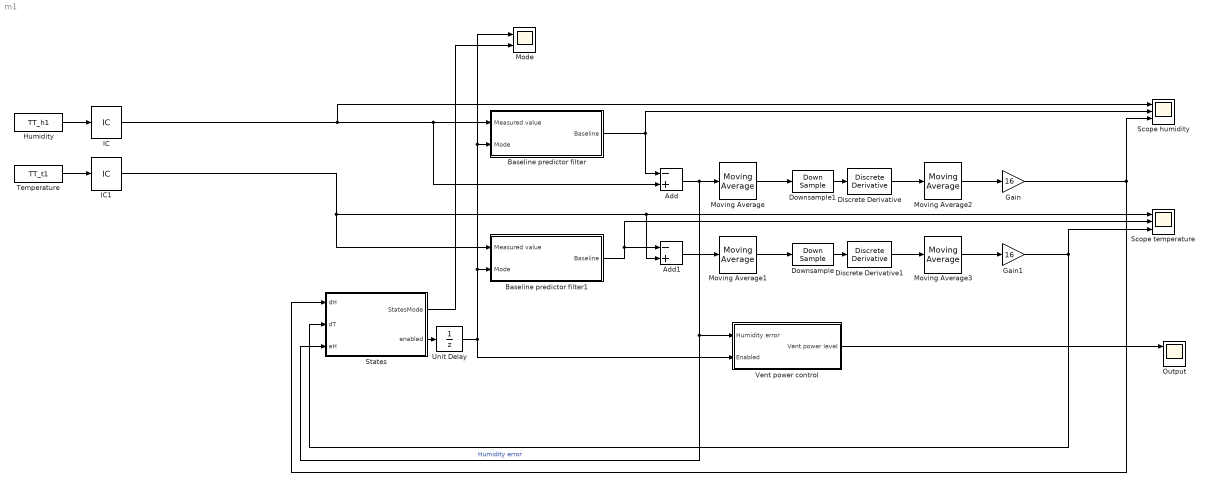
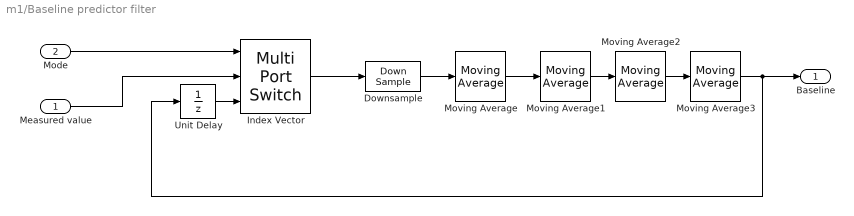
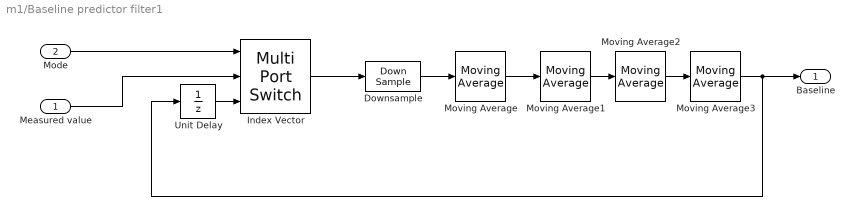
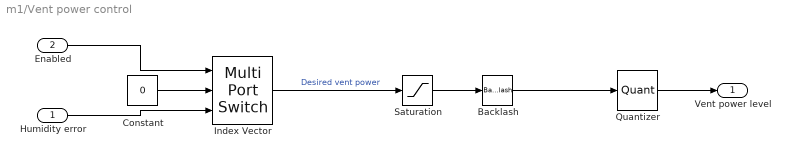
== stateflow chart m1/States ==
  state Stopping
    entry: enabled=0
  state Detected
    entry: enabled=1
  state Stable
    entry: enabled=1
  state OFF
    entry: enabled=0
  Stopping -> OFF
  Detected -> OFF [order 1] : [dH <  -5]
  Stable -> Stopping : [eH < 8]
  (default) -> OFF
  Detected -> Stable [order 2] : [eH > 10]
  OFF -> Detected : [dH > 4]
  data: dH input; dT input; StatesMode output Enum: StatesModeType; enabled output; eH input

/*
 * m1.cpp
 *
 * Academic License - for use in teaching, academic research, and meeting
 * course requirements at degree granting institutions only.  Not for
 * government, commercial, or other organizational use.
 *
 * Code generation for model "m1".
 *
 * Model version              : 1.10
 * Simulink Coder version : 9.3 (R2020a) 18-Nov-2019
 * C++ source code generated on : Mon Nov 15 14:24:38 2021
 *
 * Target selection: grt.tlc
 * Note: GRT includes extra infrastructure and instrumentation for prototyping
 * Embedded hardware selection: ARM Compatible->ARM 10
 * Code generation objectives: Unspecified
 * Validation result: Not run
 */

#include "m1_capi.h"
#include "m1.h"
#include "m1_private.h"

void m1ModelClass::m1_SystemCore_release(dsp_simulink_MovingAverage_m1_T *obj)
{
  g_dsp_private_SlidingWindowAv_T *obj_0;
  if ((obj->isInitialized == 1) && obj->isSetupComplete) {
    obj_0 = obj->pStatistic;
    if (obj_0->isInitialized == 1) {
      obj_0->isInitialized = 2;
    }

    obj->NumChannels = -1;
  }
}

void m1ModelClass::m1_SystemCore_delete(dsp_simulink_MovingAverage_m1_T *obj)
{
  m1_SystemCore_release(obj);
}

void m1ModelClass::matlabCodegenHandle_matlabCodeg
  (dsp_simulink_MovingAverage_m1_T *obj)
{
  if (!obj->matlabCodegenIsDeleted) {
    obj->matlabCodegenIsDeleted = true;
    m1_SystemCore_delete(obj);
  }
}

/*
 * System initialize for atomic system:
 *    synthesized block
 *    synthesized block
 *    synthesized block
 *    synthesized block
 */
void m1ModelClass::m1_MovingAverage3_Init(DW_MovingAverage3_m1_T *localDW)
{
  /* Start for MATLABSystem: '<Root>/Moving Average3' */
  localDW->obj.matlabCodegenIsDeleted = false;
  localDW->objisempty = true;
  localDW->obj.isInitialized = 1;
  localDW->obj.NumChannels = 1;
  localDW->gobj_2.isInitialized = 0;
  localDW->obj.pStatistic = &localDW->gobj_2;
  localDW->obj.isSetupComplete = true;
  localDW->obj.TunablePropsChanged = false;

  /* InitializeConditions for MATLABSystem: '<Root>/Moving Average3' */
  if (localDW->obj.pStatistic->isInitialized == 1) {
    localDW->obj.pStatistic->pCumSum = 0.0;
    std::memset(&localDW->obj.pStatistic->pCumSumRev[0], 0, 15U * sizeof(real_T));
    localDW->obj.pStatistic->pCumRevIndex = 1.0;
  }

  /* End of InitializeConditions for MATLABSystem: '<Root>/Moving Average3' */
}

/*
 * Output and update for atomic system:
 *    synthesized block
 *    synthesized block
 *    synthesized block
 *    synthesized block
 */
void m1ModelClass::m1_MovingAverage3(real_T rtu_0, B_MovingAverage3_m1_T *localB,
  DW_MovingAverage3_m1_T *localDW)
{
  real_T cumRevIndex;
  real_T csum;
  real_T csumrev[15];
  real_T z;
  int32_T z_tmp;

  /* MATLABSystem: '<Root>/Moving Average3' */
  if (localDW->obj.TunablePropsChanged) {
    localDW->obj.TunablePropsChanged = false;
  }

  if (localDW->obj.pStatistic->isInitialized != 1) {
    localDW->obj.pStatistic->isSetupComplete = false;
    localDW->obj.pStatistic->isInitialized = 1;
    localDW->obj.pStatistic->pCumSum = 0.0;
    localDW->obj.pStatistic->pCumRevIndex = 1.0;
    localDW->obj.pStatistic->isSetupComplete = true;
    localDW->obj.pStatistic->pCumSum = 0.0;
    std::memset(&localDW->obj.pStatistic->pCumSumRev[0], 0, 15U * sizeof(real_T));
    localDW->obj.pStatistic->pCumRevIndex = 1.0;
  }

  cumRevIndex = localDW->obj.pStatistic->pCumRevIndex;
  csum = localDW->obj.pStatistic->pCumSum;
  for (z_tmp = 0; z_tmp < 15; z_tmp++) {
    csumrev[z_tmp] = localDW->obj.pStatistic->pCumSumRev[z_tmp];
  }

  csum += rtu_0;
  z_tmp = static_cast<int32_T>(cumRevIndex) - 1;
  z = csumrev[z_tmp] + csum;
  csumrev[z_tmp] = rtu_0;
  if (cumRevIndex != 15.0) {
    cumRevIndex++;
  } else {
    cumRevIndex = 1.0;
    csum = 0.0;
    for (z_tmp = 13; z_tmp >= 0; z_tmp--) {
      csumrev[z_tmp] += csumrev[z_tmp + 1];
    }
  }

  localDW->obj.pStatistic->pCumSum = csum;
  std::memcpy(&localDW->obj.pStatistic->pCumSumRev[0], &csumrev[0], 15U * sizeof
              (real_T));
  localDW->obj.pStatistic->pCumRevIndex = cumRevIndex;
  localB->MovingAverage3 = z / 16.0;

  /* End of MATLABSystem: '<Root>/Moving Average3' */
}

/*
 * Termination for atomic system:
 *    synthesized block
 *    synthesized block
 *    synthesized block
 *    synthesized block
 */
void m1ModelClass::m1_MovingAverage3_Term(DW_MovingAverage3_m1_T *localDW)
{
  /* Terminate for MATLABSystem: '<Root>/Moving Average3' */
  matlabCodegenHandle_matlabCodeg(&localDW->obj);
}

real_T m1ModelClass::SlidingWindowAverageCG_stepImpl
  (g_dsp_private_SlidingWindow_h_T *obj, real_T u)
{
  real_T y;
  real_T cumRevIndex;
  real_T csum;
  real_T csumrev[511];
  real_T z;
  int32_T z_tmp;
  std::memcpy(&csumrev[0], &obj->pCumSumRev[0], 511U * sizeof(real_T));
  csum = obj->pCumSum + u;
  z_tmp = static_cast<int32_T>(obj->pCumRevIndex) - 1;
  z = obj->pCumSumRev[z_tmp] + csum;
  csumrev[z_tmp] = u;
  if (obj->pCumRevIndex != 511.0) {
    cumRevIndex = obj->pCumRevIndex + 1.0;
  } else {
    cumRevIndex = 1.0;
    csum = 0.0;
    for (z_tmp = 509; z_tmp >= 0; z_tmp--) {
      csumrev[z_tmp] += csumrev[z_tmp + 1];
    }
  }

  y = z / 512.0;
  obj->pCumSum = csum;
  std::memcpy(&obj->pCumSumRev[0], &csumrev[0], 511U * sizeof(real_T));
  obj->pCumRevIndex = cumRevIndex;
  return y;
}

void m1ModelClass::m1_SystemCore_release_m(dsp_simulink_MovingAverage_e_T *obj)
{
  g_dsp_private_SlidingWindow_h_T *obj_0;
  if ((obj->isInitialized == 1) && obj->isSetupComplete) {
    obj_0 = obj->pStatistic;
    if (obj_0->isInitialized == 1) {
      obj_0->isInitialized = 2;
    }

    obj->NumChannels = -1;
  }
}

void m1ModelClass::m1_SystemCore_delete_a(dsp_simulink_MovingAverage_e_T *obj)
{
  m1_SystemCore_release_m(obj);
}

void m1ModelClass::matlabCodegenHandle_matlabCod_g
  (dsp_simulink_MovingAverage_e_T *obj)
{
  if (!obj->matlabCodegenIsDeleted) {
    obj->matlabCodegenIsDeleted = true;
    m1_SystemCore_delete_a(obj);
  }
}

/*
 * System initialize for atomic system:
 *    synthesized block
 *    synthesized block
 *    synthesized block
 *    synthesized block
 *    synthesized block
 *    synthesized block
 *    synthesized block
 *    synthesized block
 */
void m1ModelClass::m1_MovingAverage3_l_Init(DW_MovingAverage3_m1_f_T *localDW)
{
  /* Start for MATLABSystem: '<S1>/Moving Average3' */
  localDW->obj.matlabCodegenIsDeleted = false;
  localDW->objisempty = true;
  localDW->obj.isInitialized = 1;
  localDW->obj.NumChannels = 1;
  localDW->gobj_2.isInitialized = 0;
  localDW->obj.pStatistic = &localDW->gobj_2;
  localDW->obj.isSetupComplete = true;
  localDW->obj.TunablePropsChanged = false;

  /* InitializeConditions for MATLABSystem: '<S1>/Moving Average3' */
  if (localDW->obj.pStatistic->isInitialized == 1) {
    localDW->obj.pStatistic->pCumSum = 0.0;
    std::memset(&localDW->obj.pStatistic->pCumSumRev[0], 0, 511U * sizeof(real_T));
    localDW->obj.pStatistic->pCumRevIndex = 1.0;
  }

  /* End of InitializeConditions for MATLABSystem: '<S1>/Moving Average3' */
}

/*
 * Output and update for atomic system:
 *    synthesized block
 *    synthesized block
 *    synthesized block
 *    synthesized block
 *    synthesized block
 *    synthesized block
 *    synthesized block
 *    synthesized block
 */
void m1ModelClass::m1_MovingAverage3_p(real_T rtu_0, B_MovingAverage3_m1_c_T
  *localB, DW_MovingAverage3_m1_f_T *localDW)
{
  /* MATLABSystem: '<S1>/Moving Average3' */
  if (localDW->obj.TunablePropsChanged) {
    localDW->obj.TunablePropsChanged = false;
  }

  if (localDW->obj.pStatistic->isInitialized != 1) {
    localDW->obj.pStatistic->isSetupComplete = false;
    localDW->obj.pStatistic->isInitialized = 1;
    localDW->obj.pStatistic->pCumSum = 0.0;
    localDW->obj.pStatistic->pCumRevIndex = 1.0;
    localDW->obj.pStatistic->isSetupComplete = true;
    localDW->obj.pStatistic->pCumSum = 0.0;
    std::memset(&localDW->obj.pStatistic->pCumSumRev[0], 0, 511U * sizeof(real_T));
    localDW->obj.pStatistic->pCumRevIndex = 1.0;
  }

  localB->MovingAverage3 = SlidingWindowAverageCG_stepImpl
    (localDW->obj.pStatistic, rtu_0);

  /* End of MATLABSystem: '<S1>/Moving Average3' */
}

/*
 * Termination for atomic system:
 *    synthesized block
 *    synthesized block
 *    synthesized block
 *    synthesized block
 *    synthesized block
 *    synthesized block
 *    synthesized block
 *    synthesized block
 */
void m1ModelClass::m1_MovingAverage3_a_Term(DW_MovingAverage3_m1_f_T *localDW)
{
  /* Terminate for MATLABSystem: '<S1>/Moving Average3' */
  matlabCodegenHandle_matlabCod_g(&localDW->obj);
}

real_T rt_roundd_snf(real_T u)
{
  real_T y;
  if (std::abs(u) < 4.503599627370496E+15) {
    if (u >= 0.5) {
      y = std::floor(u + 0.5);
    } else if (u > -0.5) {
      y = u * 0.0;
    } else {
      y = std::ceil(u - 0.5);
    }
  } else {
    y = u;
  }

  return y;
}

/* Model step function */
void m1ModelClass::step()
{
  /* local block i/o variables */
  real_T rtb_UnitDelay;
  real_T rtb_IC;
  real_T rtb_Downsample;
  real_T rtb_Humidityerror;
  real_T rtb_Diff;
  real_T rtb_Gain;
  real_T rtb_IC1;
  real_T rtb_Downsample_j;
  real_T rtb_Add1;
  real_T rtb_Diff_l;
  real_T rtb_Gain1;
  real_T rtb_Quantizer;
  real_T halfDeadBand;
  real_T rtb_TSamp;
  real_T rtb_TSamp_m;
  real_T rtb_Saturation;

  /* UnitDelay: '<Root>/Unit Delay' */
  rtb_UnitDelay = m1_DW.UnitDelay_DSTATE;

  /* FromWorkspace: '<Root>/Humidity' */
  {
    real_T *pDataValues = (real_T *) m1_DW.Humidity_PWORK.DataPtr;
    real_T *pTimeValues = (real_T *) m1_DW.Humidity_PWORK.TimePtr;
    int_T currTimeIndex = m1_DW.Humidity_IWORK.PrevIndex;
    real_T t = (&m1_M)->Timing.taskTime0;

    /* Get index */
    if (t <= pTimeValues[0]) {
      currTimeIndex = 0;
    } else if (t >= pTimeValues[35500]) {
      currTimeIndex = 35499;
    } else {
      if (t < pTimeValues[currTimeIndex]) {
        while (t < pTimeValues[currTimeIndex]) {
          currTimeIndex--;
        }
      } else {
        while (t >= pTimeValues[currTimeIndex + 1]) {
          currTimeIndex++;
        }
      }
    }

    m1_DW.Humidity_IWORK.PrevIndex = currTimeIndex;

    /* Post output */
    {
      real_T t1 = pTimeValues[currTimeIndex];
      real_T t2 = pTimeValues[currTimeIndex + 1];
      if (t1 == t2) {
        if (t < t1) {
          rtb_Quantizer = pDataValues[currTimeIndex];
        } else {
          rtb_Quantizer = pDataValues[currTimeIndex + 1];
        }
      } else {
        real_T f1 = (t2 - t) / (t2 - t1);
        real_T f2 = 1.0 - f1;
        real_T d1;
        real_T d2;
        int_T TimeIndex= currTimeIndex;
        d1 = pDataValues[TimeIndex];
        d2 = pDataValues[TimeIndex + 1];
        rtb_Quantizer = (real_T) rtInterpolate(d1, d2, f1, f2);
        pDataValues += 35501;
      }
    }
  }

  /* InitialCondition: '<Root>/IC' */
  if (m1_DW.IC_FirstOutputTime) {
    m1_DW.IC_FirstOutputTime = false;
    rtb_IC = m1_P.IC_Value;
  } else {
    rtb_IC = rtb_Quantizer;
  }

  /* End of InitialCondition: '<Root>/IC' */

  /* MultiPortSwitch: '<S1>/Index Vector' incorporates:
   *  UnitDelay: '<S1>/Unit Delay'
   */
  if (static_cast<int32_T>(rtb_UnitDelay) == 0) {
    m1_B.IndexVector = rtb_IC;
  } else {
    m1_B.IndexVector = m1_DW.UnitDelay_DSTATE_o;
  }

  /* End of MultiPortSwitch: '<S1>/Index Vector' */

  /* DownSample: '<S1>/Downsample' */
  if (m1_DW.Downsample_Count == 0) {
    rtb_Downsample = m1_B.IndexVector;
  } else {
    rtb_Downsample = m1_DW.Downsample_Buffer;
  }

  /* End of DownSample: '<S1>/Downsample' */
  m1_MovingAverage3_p(rtb_Downsample, &m1_B.MovingAverage_p,
                      &m1_DW.MovingAverage_p);
  m1_MovingAverage3_p(m1_B.MovingAverage_p.MovingAverage3,
                      &m1_B.MovingAverage1_p, &m1_DW.MovingAverage1_p);
  m1_MovingAverage3_p(m1_B.MovingAverage1_p.MovingAverage3,
                      &m1_B.MovingAverage2_p, &m1_DW.MovingAverage2_p);
  m1_MovingAverage3_p(m1_B.MovingAverage2_p.MovingAverage3,
                      &m1_B.MovingAverage3_p, &m1_DW.MovingAverage3_p);

  /* Sum: '<Root>/Add' */
  rtb_Humidityerror = rtb_IC - m1_B.MovingAverage3_p.MovingAverage3;
  m1_MovingAverage3(rtb_Humidityerror, &m1_B.MovingAverage, &m1_DW.MovingAverage);

  /* DownSample: '<Root>/Downsample1' */
  if (m1_DW.Downsample1_Count == 0) {
    rtb_Quantizer = m1_B.MovingAverage.MovingAverage3;
  } else {
    rtb_Quantizer = m1_DW.Downsample1_Buffer;
  }

  /* End of DownSample: '<Root>/Downsample1' */

  /* SampleTimeMath: '<S3>/TSamp'
   *
   * About '<S3>/TSamp':
   *  y = u * K where K = 1 / ( w * Ts )
   *  Multiplication by K = weightedTsampQuantized is being
   *  done implicitly by changing the scaling of the input signal.
   *  No work needs to be done here.  Downstream blocks may need
   *  to do work to handle the scaling of the output; this happens
   *  automatically.
   */
  rtb_TSamp = rtb_Quantizer;

  /* Sum: '<S3>/Diff' incorporates:
   *  SampleTimeMath: '<S3>/TSamp'
   *  UnitDelay: '<S3>/UD'
   *
   * About '<S3>/TSamp':
   *  y = u * K where K = 1 / ( w * Ts )
   *  Multiplication by K = weightedTsampQuantized is being
   *  done implicitly by changing the scaling of the input signal.
   *  No work needs to be done here.  Downstream blocks may need
   *  to do work to handle the scaling of the output; this happens
   *  automatically.
   */
  rtb_Diff = rtb_Quantizer - m1_DW.UD_DSTATE;
  m1_MovingAverage3(rtb_Diff, &m1_B.MovingAverage2, &m1_DW.MovingAverage2);

  /* Gain: '<Root>/Gain' */
  rtb_Gain = m1_P.Gain_Gain * m1_B.MovingAverage2.MovingAverage3;

  /* FromWorkspace: '<Root>/Temperature' */
  {
    real_T *pDataValues = (real_T *) m1_DW.Temperature_PWORK.DataPtr;
    real_T *pTimeValues = (real_T *) m1_DW.Temperature_PWORK.TimePtr;
    int_T currTimeIndex = m1_DW.Temperature_IWORK.PrevIndex;
    real_T t = (&m1_M)->Timing.taskTime0;
    if (t >= pTimeValues[35500]) {
      rtb_Quantizer = pDataValues[35500];
    } else {
      /* Get index */
      if (t <= pTimeValues[0]) {
        currTimeIndex = 0;
      } else if (t >= pTimeValues[35500]) {
        currTimeIndex = 35499;
      } else {
        if (t < pTimeValues[currTimeIndex]) {
          while (t < pTimeValues[currTimeIndex]) {
            currTimeIndex--;
          }
        } else {
          while (t >= pTimeValues[currTimeIndex + 1]) {
            currTimeIndex++;
          }
        }
      }

      m1_DW.Temperature_IWORK.PrevIndex = currTimeIndex;

      /* Post output */
      {
        real_T t1 = pTimeValues[currTimeIndex];
        real_T t2 = pTimeValues[currTimeIndex + 1];
        if (t1 == t2) {
          if (t < t1) {
            rtb_Quantizer = pDataValues[currTimeIndex];
          } else {
            rtb_Quantizer = pDataValues[currTimeIndex + 1];
          }
        } else {
          real_T f1 = (t2 - t) / (t2 - t1);
          real_T f2 = 1.0 - f1;
          real_T d1;
          real_T d2;
          int_T TimeIndex= currTimeIndex;
          d1 = pDataValues[TimeIndex];
          d2 = pDataValues[TimeIndex + 1];
          rtb_Quantizer = (real_T) rtInterpolate(d1, d2, f1, f2);
          pDataValues += 35501;
        }
      }
    }
  }

  /* InitialCondition: '<Root>/IC1' */
  if (m1_DW.IC1_FirstOutputTime) {
    m1_DW.IC1_FirstOutputTime = false;
    rtb_IC1 = m1_P.IC1_Value;
  } else {
    rtb_IC1 = rtb_Quantizer;
  }

  /* End of InitialCondition: '<Root>/IC1' */

  /* MultiPortSwitch: '<S2>/Index Vector' incorporates:
   *  UnitDelay: '<S2>/Unit Delay'
   */
  if (static_cast<int32_T>(rtb_UnitDelay) == 0) {
    m1_B.IndexVector_l = rtb_IC1;
  } else {
    m1_B.IndexVector_l = m1_DW.UnitDelay_DSTATE_k;
  }

  /* End of MultiPortSwitch: '<S2>/Index Vector' */

  /* DownSample: '<S2>/Downsample' */
  if (m1_DW.Downsample_Count_b == 0) {
    rtb_Downsample_j = m1_B.IndexVector_l;
  } else {
    rtb_Downsample_j = m1_DW.Downsample_Buffer_a;
  }

  /* End of DownSample: '<S2>/Downsample' */
  m1_MovingAverage3_p(rtb_Downsample_j, &m1_B.MovingAverage_pn,
                      &m1_DW.MovingAverage_pn);
  m1_MovingAverage3_p(m1_B.MovingAverage_pn.MovingAverage3,
                      &m1_B.MovingAverage1_pn, &m1_DW.MovingAverage1_pn);
  m1_MovingAverage3_p(m1_B.MovingAverage1_pn.MovingAverage3,
                      &m1_B.MovingAverage2_pn, &m1_DW.MovingAverage2_pn);
  m1_MovingAverage3_p(m1_B.MovingAverage2_pn.MovingAverage3,
                      &m1_B.MovingAverage3_pn, &m1_DW.MovingAverage3_pn);

  /* Sum: '<Root>/Add1' */
  rtb_Add1 = rtb_IC1 - m1_B.MovingAverage3_pn.MovingAverage3;
  m1_MovingAverage3(rtb_Add1, &m1_B.MovingAverage1, &m1_DW.MovingAverage1);

  /* DownSample: '<Root>/Downsample' */
  if (m1_DW.Downsample_Count_i == 0) {
    rtb_Quantizer = m1_B.MovingAverage1.MovingAverage3;
  } else {
    rtb_Quantizer = m1_DW.Downsample_Buffer_f;
  }

  /* End of DownSample: '<Root>/Downsample' */

  /* SampleTimeMath: '<S4>/TSamp'
   *
   * About '<S4>/TSamp':
   *  y = u * K where K = 1 / ( w * Ts )
   *  Multiplication by K = weightedTsampQuantized is being
   *  done implicitly by changing the scaling of the input signal.
   *  No work needs to be done here.  Downstream blocks may need
   *  to do work to handle the scaling of the output; this happens
   *  automatically.
   */
  rtb_TSamp_m = rtb_Quantizer;

  /* Sum: '<S4>/Diff' incorporates:
   *  SampleTimeMath: '<S4>/TSamp'
   *  UnitDelay: '<S4>/UD'
   *
   * About '<S4>/TSamp':
   *  y = u * K where K = 1 / ( w * Ts )
   *  Multiplication by K = weightedTsampQuantized is being
   *  done implicitly by changing the scaling of the input signal.
   *  No work needs to be done here.  Downstream blocks may need
   *  to do work to handle the scaling of the output; this happens
   *  automatically.
   */
  rtb_Diff_l = rtb_Quantizer - m1_DW.UD_DSTATE_n;
  m1_MovingAverage3(rtb_Diff_l, &m1_B.MovingAverage3, &m1_DW.MovingAverage3);

  /* Gain: '<Root>/Gain1' */
  rtb_Gain1 = m1_P.Gain1_Gain * m1_B.MovingAverage3.MovingAverage3;

  /* Chart: '<Root>/States' */
  if (m1_DW.is_active_c3_m1 == 0U) {
    m1_DW.is_active_c3_m1 = 1U;
    m1_B.StatesMode = StatesModeType_OFF;

    /* Update for UnitDelay: '<Root>/Unit Delay' */
    m1_DW.UnitDelay_DSTATE = 0.0;
  } else {
    switch (m1_B.StatesMode) {
     case StatesModeType_OFF:
      /* Update for UnitDelay: '<Root>/Unit Delay' */
      m1_DW.UnitDelay_DSTATE = 0.0;
      if (rtb_Gain > 4.0) {
        m1_B.StatesMode = StatesModeType_Detected;

        /* Update for UnitDelay: '<Root>/Unit Delay' */
        m1_DW.UnitDelay_DSTATE = 1.0;
      }
      break;

     case StatesModeType_Detected:
      /* Update for UnitDelay: '<Root>/Unit Delay' */
      m1_DW.UnitDelay_DSTATE = 1.0;
      if (rtb_Gain < -5.0) {
        m1_B.StatesMode = StatesModeType_OFF;

        /* Update for UnitDelay: '<Root>/Unit Delay' */
        m1_DW.UnitDelay_DSTATE = 0.0;
      } else {
        if (rtb_Humidityerror > 10.0) {
          m1_B.StatesMode = StatesModeType_Stable;

          /* Update for UnitDelay: '<Root>/Unit Delay' */
          m1_DW.UnitDelay_DSTATE = 1.0;
        }
      }
      break;

     case StatesModeType_Stable:
      /* Update for UnitDelay: '<Root>/Unit Delay' */
      m1_DW.UnitDelay_DSTATE = 1.0;
      if (rtb_Humidityerror < 8.0) {
        m1_B.StatesMode = StatesModeType_Stopping;

        /* Update for UnitDelay: '<Root>/Unit Delay' */
        m1_DW.UnitDelay_DSTATE = 0.0;
      }
      break;

     default:
      /* State Stopping */
      m1_B.StatesMode = StatesModeType_OFF;

      /* Update for UnitDelay: '<Root>/Unit Delay' */
      m1_DW.UnitDelay_DSTATE = 0.0;
      break;
    }
  }

  /* End of Chart: '<Root>/States' */
  /* MultiPortSwitch: '<S6>/Index Vector' incorporates:
   *  Constant: '<S6>/Constant'
   */
  if (static_cast<int32_T>(rtb_UnitDelay) == 0) {
    rtb_Quantizer = m1_P.Constant_Value;
  } else {
    rtb_Quantizer = rtb_Humidityerror;
  }

  /* End of MultiPortSwitch: '<S6>/Index Vector' */

  /* Saturate: '<S6>/Saturation' */
  if (rtb_Quantizer > m1_P.Saturation_UpperSat) {
    rtb_Saturation = m1_P.Saturation_UpperSat;
  } else if (rtb_Quantizer < m1_P.Saturation_LowerSat) {
    rtb_Saturation = m1_P.Saturation_LowerSat;
  } else {
    rtb_Saturation = rtb_Quantizer;
  }

  /* End of Saturate: '<S6>/Saturation' */

  /* Backlash: '<S6>/Backlash' */
  halfDeadBand = m1_P.Backlash_BacklashWidth / 2.0;
  if (rtb_Saturation < m1_DW.PrevY - halfDeadBand) {
    m1_B.Backlash = rtb_Saturation + halfDeadBand;
  } else if (rtb_Saturation <= m1_DW.PrevY + halfDeadBand) {
    m1_B.Backlash = m1_DW.PrevY;
  } else {
    m1_B.Backlash = rtb_Saturation - halfDeadBand;
  }

  /* End of Backlash: '<S6>/Backlash' */

  /* Quantizer: '<S6>/Quantizer' */
  rtb_Quantizer = rt_roundd_snf(m1_B.Backlash / m1_P.Quantizer_Interval) *
    m1_P.Quantizer_Interval;

  /* Update for UnitDelay: '<S1>/Unit Delay' */
  m1_DW.UnitDelay_DSTATE_o = m1_B.MovingAverage3_p.MovingAverage3;

  /* Update for DownSample: '<S1>/Downsample' */
  if (m1_DW.Downsample_Count == 0) {
    m1_DW.Downsample_Buffer = m1_B.IndexVector;
  }

  m1_DW.Downsample_Count++;
  if (m1_DW.Downsample_Count == 128) {
    m1_DW.Downsample_Count = 0;
  }

  /* End of Update for DownSample: '<S1>/Downsample' */

  /* Update for DownSample: '<Root>/Downsample1' */
  if (m1_DW.Downsample1_Count == 0) {
    m1_DW.Downsample1_Buffer = m1_B.MovingAverage.MovingAverage3;
  }

  m1_DW.Downsample1_Count++;
  if (m1_DW.Downsample1_Count == 16) {
    m1_DW.Downsample1_Count = 0;
  }

  /* End of Update for DownSample: '<Root>/Downsample1' */

  /* Update for UnitDelay: '<S3>/UD' */
  m1_DW.UD_DSTATE = rtb_TSamp;

  /* Update for UnitDelay: '<S2>/Unit Delay' */
  m1_DW.UnitDelay_DSTATE_k = m1_B.MovingAverage3_pn.MovingAverage3;

  /* Update for DownSample: '<S2>/Downsample' */
  if (m1_DW.Downsample_Count_b == 0) {
    m1_DW.Downsample_Buffer_a = m1_B.IndexVector_l;
  }

  m1_DW.Downsample_Count_b++;
  if (m1_DW.Downsample_Count_b == 128) {
    m1_DW.Downsample_Count_b = 0;
  }

  /* End of Update for DownSample: '<S2>/Downsample' */

  /* Update for DownSample: '<Root>/Downsample' */
  if (m1_DW.Downsample_Count_i == 0) {
    m1_DW.Downsample_Buffer_f = m1_B.MovingAverage1.MovingAverage3;
  }

  m1_DW.Downsample_Count_i++;
  if (m1_DW.Downsample_Count_i == 16) {
    m1_DW.Downsample_Count_i = 0;
  }

  /* End of Update for DownSample: '<Root>/Downsample' */

  /* Update for UnitDelay: '<S4>/UD' */
  m1_DW.UD_DSTATE_n = rtb_TSamp_m;

  /* Update for Backlash: '<S6>/Backlash' */
  m1_DW.PrevY = m1_B.Backlash;

  /* Matfile logging */
  rt_UpdateTXYLogVars((&m1_M)->rtwLogInfo, (&(&m1_M)->Timing.taskTime0));

  /* signal main to stop simulation */
  {                                    /* Sample time: [1.0s, 0.0s] */
    if ((rtmGetTFinal((&m1_M))!=-1) &&
        !((rtmGetTFinal((&m1_M))-(&m1_M)->Timing.taskTime0) > (&m1_M)
          ->Timing.taskTime0 * (DBL_EPSILON))) {
      rtmSetErrorStatus((&m1_M), "Simulation finished");
    }
  }

  /* Update absolute time for base rate */
  /* The "clockTick0" counts the number of times the code of this task has
   * been executed. The absolute time is the multiplication of "clockTick0"
   * and "Timing.stepSize0". Size of "clockTick0" ensures timer will not
   * overflow during the application lifespan selected.
   * Timer of this task consists of two 32 bit unsigned integers.
   * The two integers represent the low bits Timing.clockTick0 and the high bits
   * Timing.clockTickH0. When the low bit overflows to 0, the high bits increment.
   */
  if (!(++(&m1_M)->Timing.clockTick0)) {
    ++(&m1_M)->Timing.clockTickH0;
  }

  (&m1_M)->Timing.taskTime0 = (&m1_M)->Timing.clockTick0 * (&m1_M)
    ->Timing.stepSize0 + (&m1_M)->Timing.clockTickH0 * (&m1_M)->Timing.stepSize0
    * 4294967296.0;
}
